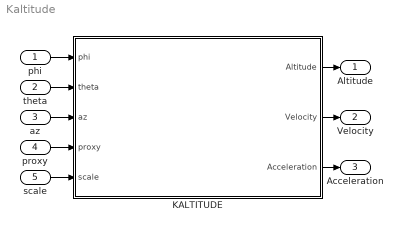
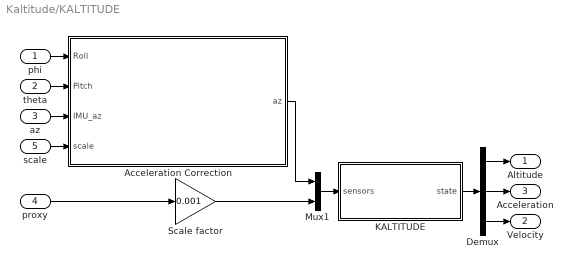
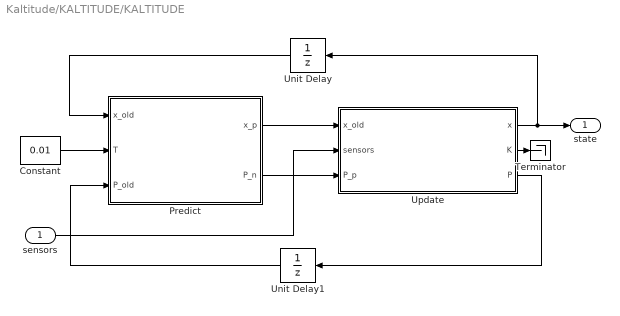
== matlab function Kaltitude/KALTITUDE/Acceleration Correction ==
function az = Accelerometer_correction(Roll,Pitch,IMU_az,scale)
%#codegen
acc_norm = IMU_az/scale;
a_corr = sqrt(1 - (sin(Roll)^2 + sin(Pitch)^2));

az = (acc_norm - a_corr)*9.81;

== matlab function Kaltitude/KALTITUDE/KALTITUDE/Update ==
%%A-KF state correction   %
% Author: Matteo Ferronato%
% Last review: 2016/02/09 %
%%%%%%%%%%%%%%%%%%%%%%%%%%%
function [x,K,P] = state_update(x_old,sensors,P_p)
% Useful Parameters
Rn = [0.7  0 ;
       0   1];
%%
H = [0 1 0 ;
     1 0 0];

%%
h = H*x_old;

%%
Pl = P_p;
x_p = x_old;

for j = 1:2
    % Innovation covariance
    S = H(j,:)*Pl*H(j,:)' + Rn(j,j);
    
    % Kalman gain
    K = Pl*H(j,:)'/S;
    
    % Updated state estimate
    x_p = x_p + K*(sensors(j,1)-h(j,1));
    
    % Updated estimated covariance
    Pl = (eye(3) - K*H(j,:))*Pl*(eye(3) - K*H(j,:))' + K*Rn(j,j)*K';
end

P = Pl;
x = x_p;

== matlab function Kaltitude/KALTITUDE/KALTITUDE/Predict
 ==
%%AKF state update        %
% Author: Matteo Ferronato%
% Last review: 2016/02/09 %
%%%%%%%%%%%%%%%%%%%%%%%%%%%
function [x_p,P_n] = state_predict(x_old,T,P_old)
%% State-noise matrix
Qn = [0.005   0     0   ;
        0   0.005   0   ;
        0     0   0.005];

%% Dynamics matrix
A = [ 1, T^2/2, T;
      0,   1,   0;
      0,   T,   1];

x_p = A*x_old;

%% Covariance propagation
P_n = A*P_old*A' + Qn;

/*
 * Kaltitude.cpp
 *
 * Academic License - for use in teaching, academic research, and meeting
 * course requirements at degree granting institutions only.  Not for
 * government, commercial, or other organizational use.
 *
 * Code generation for model "Kaltitude".
 *
 * Model version              : 1.148
 * Simulink Coder version : 8.8.1 (R2015aSP1) 04-Sep-2015
 * C++ source code generated on : Mon Apr 04 11:48:59 2016
 *
 * Target selection: grt.tlc
 * Note: GRT includes extra infrastructure and instrumentation for prototyping
 * Embedded hardware selection: ARM Compatible->ARM Cortex
 * Code generation objective: Execution efficiency
 * Validation result: Not run
 */

#include "Kaltitude.h"
#include "Kaltitude_private.h"

/* Model step function */
void KaltitudeModelClass::step()
{
  real_T A[9];
  static const real_T Qn[9] = { 0.005, 0.0, 0.0, 0.0, 0.005, 0.0, 0.0, 0.0,
    0.005 };

  real_T b_x;
  real_T h[2];
  real_T S;
  int32_T j;
  int8_T I[9];
  int8_T b_I[9];
  static const real_T Rn[4] = { 0.7, 0.0, 0.0, 1.0 };

  static const int8_T H[6] = { 0, 1, 1, 0, 0, 0 };

  real_T rtb_TmpSignalConversionAtSFunct[2];
  real_T rtb_x_p[3];
  real_T rtb_K[3];
  real_T rtb_P[9];
  int32_T i;
  real_T A_0[9];
  real_T I_0[9];
  int32_T i_0;

  /* MATLAB Function: '<S3>/Predict ' incorporates:
   *  Constant: '<S3>/Constant'
   *  UnitDelay: '<S3>/Unit Delay'
   */
  /* MATLAB Function 'KALTITUDE/KALTITUDE/Predict ': '<S4>:1' */
  /* %AKF state update        % */
  /*  Author: Matteo Ferronato% */
  /*  Last review: 2016/02/09 % */
  /* %%%%%%%%%%%%%%%%%%%%%%%%%% */
  /* % State-noise matrix */
  /* '<S4>:1:7' */
  /* % Dynamics matrix */
  /* '<S4>:1:12' */
  A[0] = 1.0;
  A[3] = Kaltitude_P.Constant_Value * Kaltitude_P.Constant_Value / 2.0;
  A[6] = Kaltitude_P.Constant_Value;
  A[1] = 0.0;
  A[4] = 1.0;
  A[7] = 0.0;
  A[2] = 0.0;
  A[5] = Kaltitude_P.Constant_Value;
  A[8] = 1.0;

  /* '<S4>:1:16' */
  /* % Covariance propagation */
  /* '<S4>:1:19' */
  for (i = 0; i < 3; i++) {
    rtb_x_p[i] = A[i + 6] * Kaltitude_DW.UnitDelay_DSTATE[2] + (A[i + 3] *
      Kaltitude_DW.UnitDelay_DSTATE[1] + A[i] * Kaltitude_DW.UnitDelay_DSTATE[0]);
  }

  /* MATLAB Function: '<S1>/Acceleration Correction' incorporates:
   *  Inport: '<Root>/phi'
   *  Inport: '<Root>/theta'
   */
  /* MATLAB Function 'KALTITUDE/Acceleration Correction': '<S2>:1' */
  /* '<S2>:1:3' */
  /* '<S2>:1:4' */
  S = sin(Kaltitude_U.phi);
  b_x = sin(Kaltitude_U.theta);

  /* SignalConversion: '<S5>/TmpSignal ConversionAt SFunction Inport2' incorporates:
   *  Gain: '<S1>/Scale factor'
   *  Inport: '<Root>/az'
   *  Inport: '<Root>/proxy'
   *  Inport: '<Root>/scale'
   *  MATLAB Function: '<S1>/Acceleration Correction'
   *  MATLAB Function: '<S3>/Update'
   */
  /* '<S2>:1:6' */
  rtb_TmpSignalConversionAtSFunct[0] = (Kaltitude_U.az / Kaltitude_U.scale -
    sqrt(1.0 - (S * S + b_x * b_x))) * 9.81;
  rtb_TmpSignalConversionAtSFunct[1] = Kaltitude_P.Scalefactor_Gain *
    Kaltitude_U.proxy;

  /* MATLAB Function: '<S3>/Update' */
  /* MATLAB Function 'KALTITUDE/KALTITUDE/Update': '<S5>:1' */
  /* %A-KF state correction   % */
  /*  Author: Matteo Ferronato% */
  /*  Last review: 2016/02/09 % */
  /* %%%%%%%%%%%%%%%%%%%%%%%%%% */
  /*  Useful Parameters */
  /* '<S5>:1:7' */
  /* % */
  /* '<S5>:1:10' */
  /* % */
  /* '<S5>:1:14' */
  for (i = 0; i < 2; i++) {
    h[i] = (real_T)H[i + 2] * rtb_x_p[1] + (real_T)H[i] * rtb_x_p[0];
  }

  /* MATLAB Function: '<S3>/Predict ' incorporates:
   *  UnitDelay: '<S3>/Unit Delay1'
   */
  /* % */
  /* '<S5>:1:17' */
  for (i = 0; i < 3; i++) {
    for (i_0 = 0; i_0 < 3; i_0++) {
      A_0[i + 3 * i_0] = 0.0;
      A_0[i + 3 * i_0] += Kaltitude_DW.UnitDelay1_DSTATE[3 * i_0] * A[i];
      A_0[i + 3 * i_0] += Kaltitude_DW.UnitDelay1_DSTATE[3 * i_0 + 1] * A[i + 3];
      A_0[i + 3 * i_0] += Kaltitude_DW.UnitDelay1_DSTATE[3 * i_0 + 2] * A[i + 6];
    }
  }

  /* MATLAB Function: '<S3>/Update' incorporates:
   *  MATLAB Function: '<S3>/Predict '
   */
  for (i = 0; i < 3; i++) {
    for (i_0 = 0; i_0 < 3; i_0++) {
      rtb_P[i + 3 * i_0] = ((A_0[i + 3] * A[i_0 + 3] + A_0[i] * A[i_0]) + A_0[i
                            + 6] * A[i_0 + 6]) + Qn[3 * i_0 + i];
    }
  }

  /* '<S5>:1:18' */
  /* '<S5>:1:20' */
  for (j = 0; j < 2; j++) {
    /* '<S5>:1:20' */
    /*  Innovation covariance */
    /* '<S5>:1:22' */
    for (i = 0; i < 3; i++) {
      rtb_K[i] = rtb_P[3 * i + 1] * (real_T)H[j + 2] + rtb_P[3 * i] * (real_T)
        H[j];
    }

    S = ((real_T)H[j + 2] * rtb_K[1] + rtb_K[0] * (real_T)H[j]) + Rn[(j << 1) +
      j];

    /*  Kalman gain */
    /* '<S5>:1:25' */
    for (i = 0; i < 3; i++) {
      rtb_K[i] = (rtb_P[i + 3] * (real_T)H[j + 2] + rtb_P[i] * (real_T)H[j]) / S;
    }

    /*  Updated state estimate */
    /* '<S5>:1:28' */
    S = rtb_TmpSignalConversionAtSFunct[j] - h[j];
    rtb_x_p[0] += rtb_K[0] * S;
    rtb_x_p[1] += rtb_K[1] * S;
    rtb_x_p[2] += rtb_K[2] * S;

    /*  Updated estimated covariance */
    /* '<S5>:1:31' */
    for (i = 0; i < 9; i++) {
      I[i] = 0;
      b_I[i] = 0;
    }

    I[0] = 1;
    I[4] = 1;
    I[8] = 1;
    b_I[0] = 1;
    b_I[4] = 1;
    b_I[8] = 1;
    for (i = 0; i < 3; i++) {
      I_0[i] = (real_T)I[i] - rtb_K[i] * (real_T)H[j];
      I_0[i + 3] = (real_T)I[i + 3] - (real_T)H[j + 2] * rtb_K[i];
      I_0[i + 6] = I[i + 6];
    }

    for (i = 0; i < 3; i++) {
      for (i_0 = 0; i_0 < 3; i_0++) {
        A_0[i + 3 * i_0] = 0.0;
        A_0[i + 3 * i_0] += rtb_P[3 * i_0] * I_0[i];
        A_0[i + 3 * i_0] += rtb_P[3 * i_0 + 1] * I_0[i + 3];
        A_0[i + 3 * i_0] += rtb_P[3 * i_0 + 2] * I_0[i + 6];
      }
    }

    for (i = 0; i < 3; i++) {
      A[i] = (real_T)b_I[3 * i] - (real_T)H[(i << 1) + j] * rtb_K[0];
      A[i + 3] = (real_T)b_I[3 * i + 1] - (real_T)H[(i << 1) + j] * rtb_K[1];
      A[i + 6] = (real_T)b_I[3 * i + 2] - (real_T)H[(i << 1) + j] * rtb_K[2];
    }

    S = Rn[(j << 1) + j];
    for (i = 0; i < 3; i++) {
      for (i_0 = 0; i_0 < 3; i_0++) {
        I_0[i + 3 * i_0] = 0.0;
        I_0[i + 3 * i_0] += A[3 * i_0] * A_0[i];
        I_0[i + 3 * i_0] += A[3 * i_0 + 1] * A_0[i + 3];
        I_0[i + 3 * i_0] += A[3 * i_0 + 2] * A_0[i + 6];
      }
    }

    for (i = 0; i < 3; i++) {
      A[i] = rtb_K[i] * S * rtb_K[0];
      A[i + 3] = rtb_K[i] * S * rtb_K[1];
      A[i + 6] = rtb_K[i] * S * rtb_K[2];
    }

    for (i = 0; i < 3; i++) {
      rtb_P[3 * i] = I_0[3 * i] + A[3 * i];
      rtb_P[1 + 3 * i] = I_0[3 * i + 1] + A[3 * i + 1];
      rtb_P[2 + 3 * i] = I_0[3 * i + 2] + A[3 * i + 2];
    }

    /* '<S5>:1:20' */
  }

  /* Outport: '<Root>/Altitude' */
  /* '<S5>:1:34' */
  /* '<S5>:1:35' */
  Kaltitude_Y.Altitude = rtb_x_p[0];

  /* Outport: '<Root>/Velocity' */
  Kaltitude_Y.Velocity = rtb_x_p[2];

  /* Outport: '<Root>/Acceleration' */
  Kaltitude_Y.Acceleration = rtb_x_p[1];

  /* Update for UnitDelay: '<S3>/Unit Delay' */
  Kaltitude_DW.UnitDelay_DSTATE[0] = rtb_x_p[0];
  Kaltitude_DW.UnitDelay_DSTATE[1] = rtb_x_p[1];
  Kaltitude_DW.UnitDelay_DSTATE[2] = rtb_x_p[2];

  /* Update for UnitDelay: '<S3>/Unit Delay1' */
  memcpy(&Kaltitude_DW.UnitDelay1_DSTATE[0], &rtb_P[0], 9U * sizeof(real_T));
}
